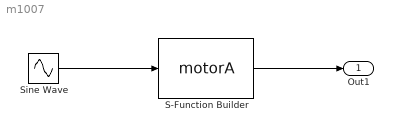
/*
 * m1007.c
 * 
 * Real-Time Workshop code generation for Simulink model "m1007.mdl".
 *
 * Model Version              : 1.1
 * Real-Time Workshop version : 6.1  (R14SP1)  05-Sep-2004
 * C source code generated on : Sun Apr 03 17:43:27 2005
 */

#include "m1007.h"
#include "m1007_private.h"

/* Block signals (auto storage) */
BlockIO_m1007 m1007_B;

/* Continuous states */
ContinuousStates_m1007 m1007_X;

/* External output (root outports fed by signals with auto storage) */
ExternalOutputs_m1007 m1007_Y;

/* Real-time model */
rtModel_m1007 m1007_M_;
rtModel_m1007 *m1007_M = &m1007_M_;

/* This function implements a singletasking scheduler for a system with 2
 * rates.  This function is called by the generated step function, hence the
 * generated code self-manages all its subrates.
 */
static void rate_scheduler(void)
{

  /* Compute which subrates run during the next base time step.  Subrates
   * are an integer multiple of the base rate counter.  Therefore, the subtask
   * counter is reset when it reaches its limit (zero means run).
   */
}

/* This function updates continuous states using the ODE4 fixed-step
 * solver algorithm
 */
static void rt_ertODEUpdateContinuousStates(RTWSolverInfo *si , int_T tid)
{
  time_T t = rtsiGetT(si);
  time_T tnew = rtsiGetSolverStopTime(si);
  time_T h = rtsiGetStepSize(si);
  real_T *x = rtsiGetContStates(si);
  ODE4_IntgData *id = rtsiGetSolverData(si);
  real_T *y = id->y;
  real_T *f0 = id->f[0];
  real_T *f1 = id->f[1];
  real_T *f2 = id->f[2];
  real_T *f3 = id->f[3];
  real_T temp;
  int_T i;

  int_T nXc = 1;

  rtsiSetSimTimeStep(si,MINOR_TIME_STEP);

  /* Save the state values at time t in y, we'll use x as ynew. */
  (void)memcpy(y, x, nXc*sizeof(real_T));

  /* Assumes that rtsiSetT and ModelOutputs are up-to-date */
  /* f0 = f(t,y) */
  rtsiSetdX(si, f0);
  m1007_derivatives();

  /* f1 = f(t + (h/2), y + (h/2)*f0) */
  temp = 0.5 * h;
  for (i = 0; i < nXc; i++) x[i] = y[i] + (temp*f0[i]);
  rtsiSetT(si, t + temp);
  rtsiSetdX(si, f1);
  m1007_output(0);
  m1007_derivatives();

  /* f2 = f(t + (h/2), y + (h/2)*f1) */
  for (i = 0; i < nXc; i++) x[i] = y[i] + (temp*f1[i]);
  rtsiSetdX(si, f2);
  m1007_output(0);
  m1007_derivatives();

  /* f3 = f(t + h, y + h*f2) */
  for (i = 0; i < nXc; i++) x[i] = y[i] + (h*f2[i]);
  rtsiSetT(si, tnew);
  rtsiSetdX(si, f3);
  m1007_output(0);
  m1007_derivatives();

  /* tnew = t + h
     ynew = y + (h/6)*(f0 + 2*f1 + 2*f2 + 2*f3) */
  temp = h / 6.0;
  for (i = 0; i < nXc; i++) {
    x[i] = y[i] + temp*(f0[i] + 2.0*f1[i] + 2.0*f2[i] + f3[i]);
  }

  rtsiSetSimTimeStep(si,MAJOR_TIME_STEP);
}

/* Model output function */
void m1007_output(int_T tid)
{

  /* Update absolute time of base rate at minor time step */
  if (rtmIsMinorTimeStep(m1007_M)) {
    m1007_M->Timing.t[0] = rtsiGetT(&m1007_M->solverInfo);
  }

  if (rtmIsMajorTimeStep(m1007_M)) {
    /* set solver stop time */
    rtsiSetSolverStopTime(&m1007_M->solverInfo,
     ((m1007_M->Timing.clockTick0+1)*m1007_M->Timing.stepSize0));
  }                                     /* end MajorTimeStep */

  /* Sin: '<Root>/Sine Wave' */
  m1007_B.SineWave = m1007_P.SineWave_Amp *
    sin(m1007_P.SineWave_Freq * m1007_M->Timing.t[0] + m1007_P.SineWave_Phase) +
    m1007_P.SineWave_Bias;

  {
    real_T *pxc = m1007_M->ModelData.contStates;
    m1007_B.SFunctionBuilder=pxc[0];
  }

  /* Outport: '<Root>/Out1' */
  m1007_Y.Out1 = m1007_B.SFunctionBuilder;
}

/* Model update function */
void m1007_update(int_T tid)
{

  if (rtmIsMajorTimeStep(m1007_M)) {
    rt_ertODEUpdateContinuousStates(&m1007_M->solverInfo, 0);
  }

  /* Update absolute time for base rate */

  if(!(++m1007_M->Timing.clockTick0)) ++m1007_M->Timing.clockTickH0;
  m1007_M->Timing.t[0] = m1007_M->Timing.clockTick0 * m1007_M->Timing.stepSize0
    + m1007_M->Timing.clockTickH0 * m1007_M->Timing.stepSize0 * 4294967296.0;

  if (rtmIsMajorTimeStep(m1007_M) &&
   m1007_M->Timing.TaskCounters.TID[1] == 0) {
    /* Update absolute timer for sample time: [0.1s, 0.0s] */

    if(!(++m1007_M->Timing.clockTick1)) ++m1007_M->Timing.clockTickH1;
    m1007_M->Timing.t[1] = m1007_M->Timing.clockTick1 *
      m1007_M->Timing.stepSize1 + m1007_M->Timing.clockTickH1 *
      m1007_M->Timing.stepSize1 * 4294967296.0;
  }

  rate_scheduler();
}
